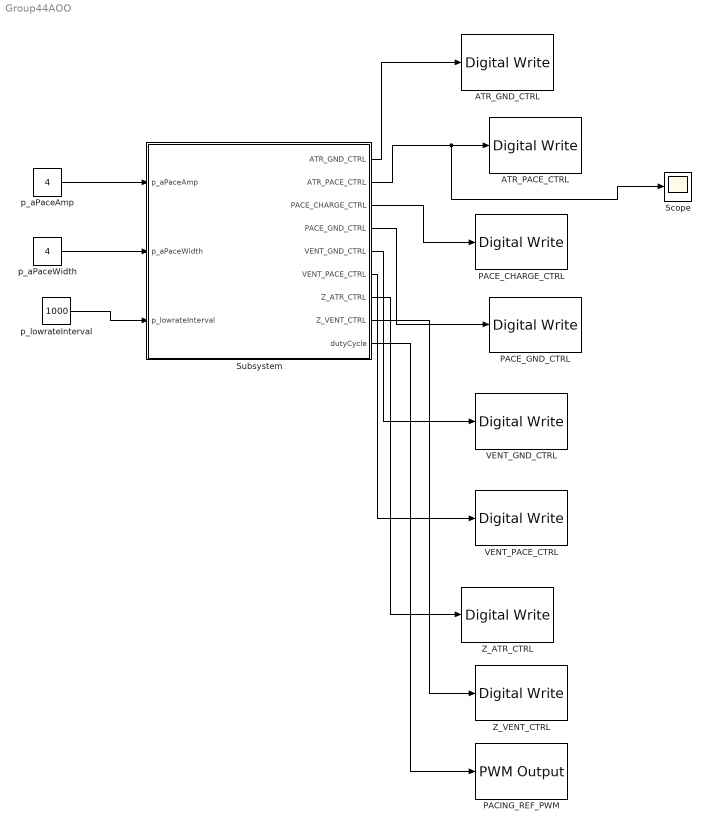
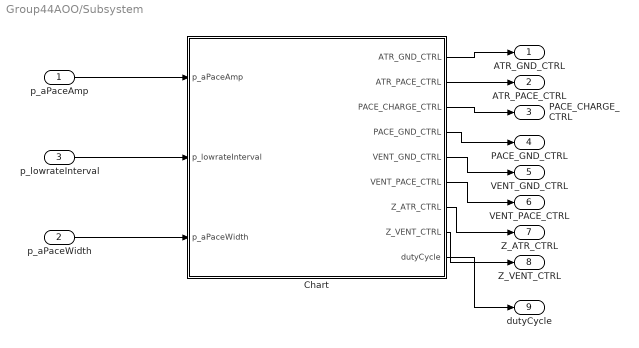
== stateflow chart Group44AOO/Subsystem/Chart ==
  state ChargeC22_Atrial_DischargeC21
    entry:
    ATR_PACE_CTRL = false;
    VENT_PACE_CTRL = false;
    PACE_CHARGE_CTRL = true;
    PACE_GND_CTRL = true;
    Z_ATR_CTRL = false;
    Z_VENT_CTRL = false;
    ATR_GND_CTRL = true;
    VENT_GND_CTRL = false;
    dutyCycle=p_aPaceAmp/5.0*100
  state PaceAtria
    entry:
    PACE_CHARGE_CTRL = false;
    PACE_GND_CTRL = true;
    ATR_PACE_CTRL = true;
    ATR_GND_CTRL = false;
    Z_ATR_CTRL = false;
    Z_VENT_CTRL = false;
    VENT_GND_CTRL = false;
    VENT_PACE_CTRL = false;
    %natPaceDetected=false;
  (default) -> ChargeC22_Atrial_DischargeC21
  ChargeC22_Atrial_DischargeC21 -> PaceAtria : after(p_lowrateInterval-p_aPaceWidth,msec)
  PaceAtria -> ChargeC22_Atrial_DischargeC21 : after(p_aPaceWidth,msec)
  data: p_aPaceWidth input; p_lowrateInterval input; ATR_GND_CTRL output; ATR_PACE_CTRL output; PACE_CHARGE_CTRL output; PACE_GND_CTRL output; VENT_GND_CTRL output; VENT_PACE_CTRL output; Z_ATR_CTRL output; Z_VENT_CTRL output; dutyCycle output; p_aPaceAmp input

/*
 * Academic License - for use in teaching, academic research, and meeting
 * course requirements at degree granting institutions only.  Not for
 * government, commercial, or other organizational use.
 *
 * File: Group44AOO.c
 *
 * Code generated for Simulink model 'Group44AOO'.
 *
 * Model version                  : 1.6
 * Simulink Coder version         : 9.8 (R2022b) 13-May-2022
 * C/C++ source code generated on : Mon Oct 17 18:23:59 2022
 *
 * Target selection: ert.tlc
 * Embedded hardware selection: ARM Compatible->ARM Cortex
 * Code generation objectives: Unspecified
 * Validation result: Not run
 */

#include "Group44AOO.h"
#include "rtwtypes.h"
#include <math.h>
#include "Group44AOO_types.h"

/* Named constants for Chart: '<S1>/Chart' */
#define Group44AOO_IN_PaceAtria        ((uint8_T)2U)
#define IN_ChargeC22_Atrial_DischargeC2 ((uint8_T)1U)

/* Block signals (default storage) */
B_Group44AOO_T Group44AOO_B;

/* Block states (default storage) */
DW_Group44AOO_T Group44AOO_DW;

/* Real-time model */
static RT_MODEL_Group44AOO_T Group44AOO_M_;
RT_MODEL_Group44AOO_T *const Group44AOO_M = &Group44AOO_M_;

/* Model step function */
void Group44AOO_step(void)
{
  boolean_T rtb_ATR_GND_CTRL;
  boolean_T rtb_ATR_PACE_CTRL;
  boolean_T rtb_PACE_CHARGE_CTRL;

  /* Chart: '<S1>/Chart' incorporates:
   *  Constant: '<Root>/p_aPaceAmp'
   *  Constant: '<Root>/p_aPaceWidth'
   *  Constant: '<Root>/p_lowrateInterval'
   */
  if (Group44AOO_DW.temporalCounter_i1 < MAX_uint32_T) {
    Group44AOO_DW.temporalCounter_i1++;
  }

  if (Group44AOO_DW.is_active_c3_Group44AOO == 0U) {
    Group44AOO_DW.is_active_c3_Group44AOO = 1U;
    Group44AOO_DW.is_c3_Group44AOO = IN_ChargeC22_Atrial_DischargeC2;
    Group44AOO_DW.temporalCounter_i1 = 0U;
    rtb_ATR_PACE_CTRL = false;
    rtb_PACE_CHARGE_CTRL = true;
    rtb_ATR_GND_CTRL = true;
    Group44AOO_B.dutyCycle = Group44AOO_P.p_aPaceAmp_Value / 5.0 * 100.0;
  } else if (Group44AOO_DW.is_c3_Group44AOO == IN_ChargeC22_Atrial_DischargeC2)
  {
    rtb_ATR_PACE_CTRL = false;
    rtb_PACE_CHARGE_CTRL = true;
    rtb_ATR_GND_CTRL = true;
    if (Group44AOO_DW.temporalCounter_i1 >= (uint32_T)ceil
        (Group44AOO_P.p_lowrateInterval_Value - Group44AOO_P.p_aPaceWidth_Value))
    {
      Group44AOO_DW.is_c3_Group44AOO = Group44AOO_IN_PaceAtria;
      Group44AOO_DW.temporalCounter_i1 = 0U;
      rtb_PACE_CHARGE_CTRL = false;
      rtb_ATR_PACE_CTRL = true;
      rtb_ATR_GND_CTRL = false;
    }
  } else {
    /* case IN_PaceAtria: */
    rtb_PACE_CHARGE_CTRL = false;
    rtb_ATR_PACE_CTRL = true;
    rtb_ATR_GND_CTRL = false;
    if (Group44AOO_DW.temporalCounter_i1 >= (uint32_T)ceil
        (Group44AOO_P.p_aPaceWidth_Value)) {
      Group44AOO_DW.is_c3_Group44AOO = IN_ChargeC22_Atrial_DischargeC2;
      Group44AOO_DW.temporalCounter_i1 = 0U;
      rtb_ATR_PACE_CTRL = false;
      rtb_PACE_CHARGE_CTRL = true;
      rtb_ATR_GND_CTRL = true;
      Group44AOO_B.dutyCycle = Group44AOO_P.p_aPaceAmp_Value / 5.0 * 100.0;
    }
  }

  /* End of Chart: '<S1>/Chart' */

  /* MATLABSystem: '<Root>/ATR_GND_CTRL' */
  MW_digitalIO_write(Group44AOO_DW.obj_l5.MW_DIGITALIO_HANDLE, rtb_ATR_GND_CTRL);

  /* MATLABSystem: '<Root>/ATR_PACE_CTRL' */
  MW_digitalIO_write(Group44AOO_DW.obj_e.MW_DIGITALIO_HANDLE, rtb_ATR_PACE_CTRL);

  /* MATLABSystem: '<Root>/PACE_CHARGE_CTRL' */
  MW_digitalIO_write(Group44AOO_DW.obj_lf.MW_DIGITALIO_HANDLE,
                     rtb_PACE_CHARGE_CTRL);

  /* MATLABSystem: '<Root>/PACE_GND_CTRL' */
  MW_digitalIO_write(Group44AOO_DW.obj_h0.MW_DIGITALIO_HANDLE, true);

  /* MATLABSystem: '<Root>/PACING_REF_PWM' */
  MW_PWM_SetDutyCycle(Group44AOO_DW.obj_b.MW_PWM_HANDLE, Group44AOO_B.dutyCycle);

  /* MATLABSystem: '<Root>/VENT_GND_CTRL' */
  MW_digitalIO_write(Group44AOO_DW.obj_h.MW_DIGITALIO_HANDLE, false);

  /* MATLABSystem: '<Root>/VENT_PACE_CTRL' */
  MW_digitalIO_write(Group44AOO_DW.obj_g.MW_DIGITALIO_HANDLE, false);

  /* MATLABSystem: '<Root>/Z_ATR_CTRL' */
  MW_digitalIO_write(Group44AOO_DW.obj_l.MW_DIGITALIO_HANDLE, false);

  /* MATLABSystem: '<Root>/Z_VENT_CTRL' */
  MW_digitalIO_write(Group44AOO_DW.obj.MW_DIGITALIO_HANDLE, false);
}
